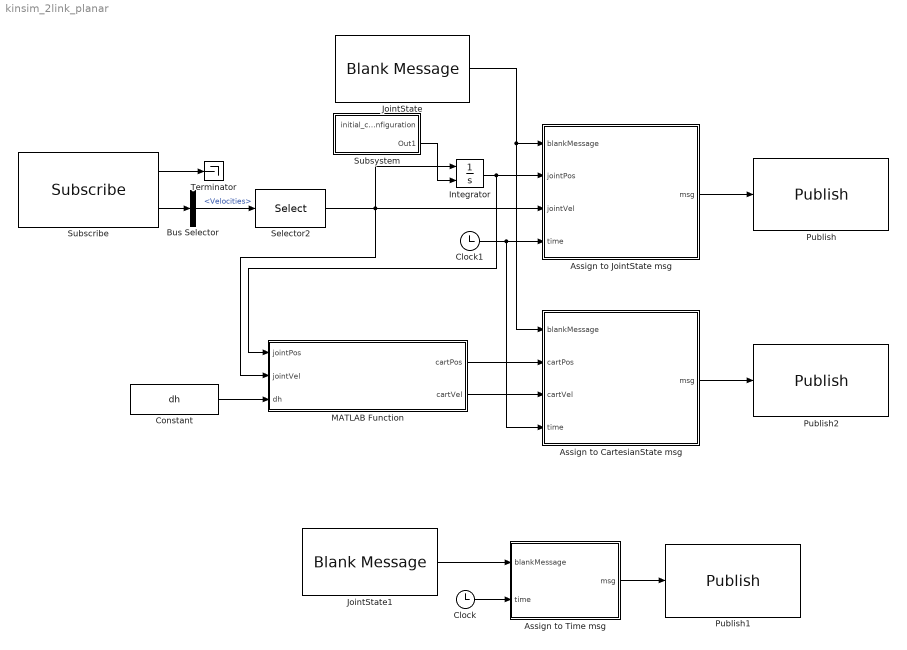
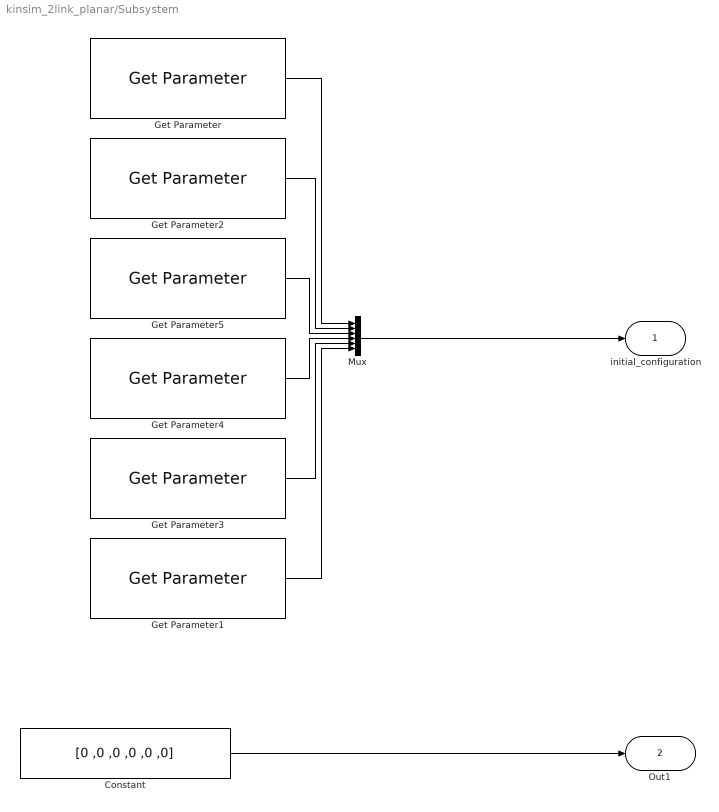
== matlab function kinsim_2link_planar/Assign to Time msg ==
function msg = assign_Time(blankMessage,time)
%#codegen

% Assign the output message to be the same with input blank message
msg = blankMessage;

% Convert and set time
msg.Clock_.Sec  = fix(time);
msg.Clock_.Nsec = fix((time-fix(time))*1e9);

== matlab function kinsim_2link_planar/Assign to JointState msg ==
function msg = assign_JointState(blankMessage,jointPos,jointVel,time)
%#codegen

% Assign the output message to be the same with input blank message
msg = blankMessage;

% Initialize time stamp
msg.Header.Stamp.Sec  = fix(time);
msg.Header.Stamp.Nsec = fix((time-fix(time))*1e9);

% Set the number of strings in the string array, and joint positions/velocities in the position/velocity array
numJoints = length(jointPos);
msg.Name_SL_Info.CurrentLength = uint32(numJoints);
msg.Position_SL_Info.CurrentLength = uint32(numJoints);
msg.Velocity_SL_Info.CurrentLength = uint32(numJoints);

% Set the individual components in the message arrays
strArrayToAssign = {'joint_1', 'joint_2', 'joint_3', 'joint_4', 'joint_5', 'joint_6'};

for idx=1:numJoints
    str = strArrayToAssign{idx};
    strLength = length(str);
    msg.Name(idx).Data(1:strLength) = uint8(str);
    msg.Name(idx).Data_SL_Info.CurrentLength = uint32(strLength);

    msg.Position(idx) = jointPos(idx);
    msg.Velocity(idx) = jointVel(idx);
end

== matlab function kinsim_2link_planar/MATLAB Function ==
function [cartPos, cartVel] = forward_kinematics_2link(jointPos,jointVel,dh)
%dh è una matrice di denavit hart...
%dh=[0.337,0,-pi/2; 0,0.21,0; 0,0,-pi/2; 0.268,0,pi/2; 0,0,-pi/2; 0.174,0,0];

cartPos = zeros(6,1);
cartVel = zeros(6,1);
A=zeros(4,4,6);
T=zeros(4,4,6);
%jointPos = [0,-pi/2,-pi/2,-pi,-pi,0];


for i=1:6
 A(:,:,i) = [ cos(jointPos(i)),-sin(jointPos(i))*cos(dh(i,3)), sin(jointPos(i))*sin(dh(i,3)),dh(i,2)*cos(jointPos(i));
              sin(jointPos(i)), cos(jointPos(i))*cos(dh(i,3)),-cos(jointPos(i))*sin(dh(i,3)),dh(i,2)*sin(jointPos(i));
              0,                        sin(dh(i,3)),               cos(dh(i,3)),                   dh(i,1);
              0,                            0,                           0,                            1];
end
T(:,:,1) = A(:,:,1);
for i=2:6
    T(:,:,i) = T(:,:,i-1)*A(:,:,i);
end
cartPos(1:3) = T(1:3,4,6);
cartPos(4:6) = rotm2eul(T(1:3,1:3,6));

J = zeros(6,6);
J(1:3,1) = cross([0,0,1],T(1:3,4,6));
J(4:6,1) = [0;0;1];
for i = 2:6
    J(1:3,i) = cross(T(1:3,3,i-1),T(1:3,4,6)-T(1:3,4,i-1));
    J(4:6,i) = T(1:3,3,i-1);
end

R = [0,-sin(cartPos(4)),cos(cartPos(4))*sin(cartPos(5));
     0,cos(cartPos(4)), sin(cartPos(4))*sin(cartPos(5));
     1,     0,              cos(cartPos(5))];
 
cartVel = J*jointVel;
cartVel(4:6)=R*cartVel(4:6);

== matlab function kinsim_2link_planar/Assign to CartesianState msg ==
function msg = assign_CartesianState(blankMessage,cartPos,cartVel,time)
%#codegen

% Assign the output message to be the same with input blank message
msg = blankMessage;

% Initialize time stamp
msg.Header.Stamp.Sec  = fix(time);
msg.Header.Stamp.Nsec = fix((time-fix(time))*1e9);

% Set the number of strings in the string array, and joint positions/velocities in the position/velocity array
numCoordinates = length(cartPos);
msg.Name_SL_Info.CurrentLength = uint32(numCoordinates);
msg.Position_SL_Info.CurrentLength = uint32(numCoordinates);
msg.Velocity_SL_Info.CurrentLength = uint32(numCoordinates);

% Set the individual components in the message arrays
strArrayToAssign = {'joint_1', 'joint_2', 'joint_3', 'joint_4', 'joint_5', 'joint_6'};

for idx=1:numCoordinates
    str = strArrayToAssign{idx};
    strLength = length(str);
    msg.Name(idx).Data(1:strLength) = uint8(str);
    msg.Name(idx).Data_SL_Info.CurrentLength = uint32(strLength);

    msg.Position(idx) = cartPos(idx);
    msg.Velocity(idx) = cartVel(idx);
end

//
// Academic License - for use in teaching, academic research, and meeting
// course requirements at degree granting institutions only.  Not for
// government, commercial, or other organizational use.
//
// File: kinsim_2link_planar.cpp
//
// Code generated for Simulink model 'kinsim_2link_planar'.
//
// Model version                  : 1.122
// Simulink Coder version         : 9.3 (R2020a) 18-Nov-2019
// C/C++ source code generated on : Tue May 12 23:09:10 2020
//
// Target selection: ert.tlc
// Embedded hardware selection: Generic->Unspecified (assume 32-bit Generic)
// Code generation objectives: Unspecified
// Validation result: Not run
//
#include "kinsim_2link_planar.h"
#include "kinsim_2link_planar_private.h"
#include "kinsim_2link_planar_dt.h"

// Block signals (default storage)
B_kinsim_2link_planar_T kinsim_2link_planar_B;

// Continuous states
X_kinsim_2link_planar_T kinsim_2link_planar_X;

// Block states (default storage)
DW_kinsim_2link_planar_T kinsim_2link_planar_DW;

// Real-time model
RT_MODEL_kinsim_2link_planar_T kinsim_2link_planar_M_ =
  RT_MODEL_kinsim_2link_planar_T();
RT_MODEL_kinsim_2link_planar_T *const kinsim_2link_planar_M =
  &kinsim_2link_planar_M_;

// Forward declaration for local functions
static void kinsim_2link_pl_SystemCore_step(boolean_T *varargout_1, real_T
  varargout_2_Positions[128], uint32_T *varargout_2_Positions_SL_Info_C,
  uint32_T *varargout_2_Positions_SL_Info_R, real_T varargout_2_Velocities[128],
  uint32_T *varargout_2_Velocities_SL_Info_, uint32_T
  *varargout_2_Velocities_SL_Inf_0, real_T varargout_2_Accelerations[128],
  uint32_T *varargout_2_Accelerations_SL_In, uint32_T
  *varargout_2_Accelerations_SL__0, real_T varargout_2_Effort[128], uint32_T
  *varargout_2_Effort_SL_Info_Curr, uint32_T *varargout_2_Effort_SL_Info_Rece,
  real_T *varargout_2_TimeFromStart_Sec, real_T *varargout_2_TimeFromStart_Nsec);
static void kinsim_2link_planar_atan2(const real_T y_data[], const int32_T
  y_size[3], const real_T x_data[], const int32_T x_size[3], real_T r_data[],
  int32_T r_size[3]);
static void matlabCodegenHandle_matlabC_li5(ros_slros_internal_block_Subs_T *obj);
static void matlabCodegenHandle_matlab_li5a(ros_slros_internal_block_GetP_T *obj);
static void matlabCodegenHandle_matlabCodeg(ros_slros_internal_block_Publ_T *obj);

//
// This function updates continuous states using the ODE3 fixed-step
// solver algorithm
//
static void rt_ertODEUpdateContinuousStates(RTWSolverInfo *si )
{
  // Solver Matrices
  static const real_T rt_ODE3_A[3] = {
    1.0/2.0, 3.0/4.0, 1.0
  };

  static const real_T rt_ODE3_B[3][3] = {
    { 1.0/2.0, 0.0, 0.0 },

    { 0.0, 3.0/4.0, 0.0 },

    { 2.0/9.0, 1.0/3.0, 4.0/9.0 }
  };

  time_T t = rtsiGetT(si);
  time_T tnew = rtsiGetSolverStopTime(si);
  time_T h = rtsiGetStepSize(si);
  real_T *x = rtsiGetContStates(si);
  ODE3_IntgData *id = static_cast<ODE3_IntgData *>(rtsiGetSolverData(si));
  real_T *y = id->y;
  real_T *f0 = id->f[0];
  real_T *f1 = id->f[1];
  real_T *f2 = id->f[2];
  real_T hB[3];
  int_T i;
  int_T nXc = 6;
  rtsiSetSimTimeStep(si,MINOR_TIME_STEP);

  // Save the state values at time t in y, we'll use x as ynew.
  (void) memcpy(y, x,
                static_cast<uint_T>(nXc)*sizeof(real_T));

  // Assumes that rtsiSetT and ModelOutputs are up-to-date
  // f0 = f(t,y)
  rtsiSetdX(si, f0);
  kinsim_2link_planar_derivatives();

  // f(:,2) = feval(odefile, t + hA(1), y + f*hB(:,1), args(:)(*));
  hB[0] = h * rt_ODE3_B[0][0];
  for (i = 0; i < nXc; i++) {
    x[i] = y[i] + (f0[i]*hB[0]);
  }

  rtsiSetT(si, t + h*rt_ODE3_A[0]);
  rtsiSetdX(si, f1);
  kinsim_2link_planar_step();
  kinsim_2link_planar_derivatives();

  // f(:,3) = feval(odefile, t + hA(2), y + f*hB(:,2), args(:)(*));
  for (i = 0; i <= 1; i++) {
    hB[i] = h * rt_ODE3_B[1][i];
  }

  for (i = 0; i < nXc; i++) {
    x[i] = y[i] + (f0[i]*hB[0] + f1[i]*hB[1]);
  }

  rtsiSetT(si, t + h*rt_ODE3_A[1]);
  rtsiSetdX(si, f2);
  kinsim_2link_planar_step();
  kinsim_2link_planar_derivatives();

  // tnew = t + hA(3);
  // ynew = y + f*hB(:,3);
  for (i = 0; i <= 2; i++) {
    hB[i] = h * rt_ODE3_B[2][i];
  }

  for (i = 0; i < nXc; i++) {
    x[i] = y[i] + (f0[i]*hB[0] + f1[i]*hB[1] + f2[i]*hB[2]);
  }

  rtsiSetT(si, tnew);
  rtsiSetSimTimeStep(si,MAJOR_TIME_STEP);
}

static void kinsim_2link_pl_SystemCore_step(boolean_T *varargout_1, real_T
  varargout_2_Positions[128], uint32_T *varargout_2_Positions_SL_Info_C,
  uint32_T *varargout_2_Positions_SL_Info_R, real_T varargout_2_Velocities[128],
  uint32_T *varargout_2_Velocities_SL_Info_, uint32_T
  *varargout_2_Velocities_SL_Inf_0, real_T varargout_2_Accelerations[128],
  uint32_T *varargout_2_Accelerations_SL_In, uint32_T
  *varargout_2_Accelerations_SL__0, real_T varargout_2_Effort[128], uint32_T
  *varargout_2_Effort_SL_Info_Curr, uint32_T *varargout_2_Effort_SL_Info_Rece,
  real_T *varargout_2_TimeFromStart_Sec, real_T *varargout_2_TimeFromStart_Nsec)
{
  *varargout_1 = Sub_kinsim_2link_planar_16.getLatestMessage
    (&kinsim_2link_planar_B.b_varargout_2);
  *varargout_2_Positions_SL_Info_C =
    kinsim_2link_planar_B.b_varargout_2.Positions_SL_Info.CurrentLength;
  *varargout_2_Positions_SL_Info_R =
    kinsim_2link_planar_B.b_varargout_2.Positions_SL_Info.ReceivedLength;
  *varargout_2_Velocities_SL_Info_ =
    kinsim_2link_planar_B.b_varargout_2.Velocities_SL_Info.CurrentLength;
  *varargout_2_Velocities_SL_Inf_0 =
    kinsim_2link_planar_B.b_varargout_2.Velocities_SL_Info.ReceivedLength;
  *varargout_2_Accelerations_SL_In =
    kinsim_2link_planar_B.b_varargout_2.Accelerations_SL_Info.CurrentLength;
  *varargout_2_Accelerations_SL__0 =
    kinsim_2link_planar_B.b_varargout_2.Accelerations_SL_Info.ReceivedLength;
  memcpy(&varargout_2_Positions[0],
         &kinsim_2link_planar_B.b_varargout_2.Positions[0], sizeof(real_T) << 7U);
  memcpy(&varargout_2_Velocities[0],
         &kinsim_2link_planar_B.b_varargout_2.Velocities[0], sizeof(real_T) <<
         7U);
  memcpy(&varargout_2_Accelerations[0],
         &kinsim_2link_planar_B.b_varargout_2.Accelerations[0], sizeof(real_T) <<
         7U);
  memcpy(&varargout_2_Effort[0], &kinsim_2link_planar_B.b_varargout_2.Effort[0],
         sizeof(real_T) << 7U);
  *varargout_2_Effort_SL_Info_Curr =
    kinsim_2link_planar_B.b_varargout_2.Effort_SL_Info.CurrentLength;
  *varargout_2_Effort_SL_Info_Rece =
    kinsim_2link_planar_B.b_varargout_2.Effort_SL_Info.ReceivedLength;
  *varargout_2_TimeFromStart_Sec =
    kinsim_2link_planar_B.b_varargout_2.TimeFromStart.Sec;
  *varargout_2_TimeFromStart_Nsec =
    kinsim_2link_planar_B.b_varargout_2.TimeFromStart.Nsec;
}

real_T rt_atan2d_snf(real_T u0, real_T u1)
{
  real_T y;
  int32_T u0_0;
  int32_T u1_0;
  if (rtIsNaN(u0) || rtIsNaN(u1)) {
    y = (rtNaN);
  } else if (rtIsInf(u0) && rtIsInf(u1)) {
    if (u0 > 0.0) {
      u0_0 = 1;
    } else {
      u0_0 = -1;
    }

    if (u1 > 0.0) {
      u1_0 = 1;
    } else {
      u1_0 = -1;
    }

    y = atan2(static_cast<real_T>(u0_0), static_cast<real_T>(u1_0));
  } else if (u1 == 0.0) {
    if (u0 > 0.0) {
      y = RT_PI / 2.0;
    } else if (u0 < 0.0) {
      y = -(RT_PI / 2.0);
    } else {
      y = 0.0;
    }
  } else {
    y = atan2(u0, u1);
  }

  return y;
}

// Function for MATLAB Function: '<Root>/MATLAB Function'
static void kinsim_2link_planar_atan2(const real_T y_data[], const int32_T
  y_size[3], const real_T x_data[], const int32_T x_size[3], real_T r_data[],
  int32_T r_size[3])
{
  int32_T loop_ub;
  int32_T tmp;
  int8_T csz_idx_2;
  if (y_size[2] <= x_size[2]) {
    csz_idx_2 = static_cast<int8_T>(y_size[2]);
    tmp = static_cast<int8_T>(y_size[2]);
  } else {
    csz_idx_2 = 0;
    tmp = 0;
  }

  loop_ub = tmp - 1;
  if (0 <= loop_ub) {
    memcpy(&kinsim_2link_planar_B.z1_data, &r_data[0], (loop_ub + 1) * sizeof
           (real_T));
  }

  if (0 <= csz_idx_2 - 1) {
    kinsim_2link_planar_B.z1_data = rt_atan2d_snf(y_data[0], x_data[0]);
  }

  r_size[0] = 1;
  r_size[1] = 1;
  r_size[2] = csz_idx_2;
  loop_ub = tmp - 1;
  if (0 <= loop_ub) {
    memcpy(&r_data[0], &kinsim_2link_planar_B.z1_data, (loop_ub + 1) * sizeof
           (real_T));
  }
}

static void matlabCodegenHandle_matlabC_li5(ros_slros_internal_block_Subs_T *obj)
{
  if (!obj->matlabCodegenIsDeleted) {
    obj->matlabCodegenIsDeleted = true;
  }
}

static void matlabCodegenHandle_matlab_li5a(ros_slros_internal_block_GetP_T *obj)
{
  if (!obj->matlabCodegenIsDeleted) {
    obj->matlabCodegenIsDeleted = true;
  }
}

static void matlabCodegenHandle_matlabCodeg(ros_slros_internal_block_Publ_T *obj)
{
  if (!obj->matlabCodegenIsDeleted) {
    obj->matlabCodegenIsDeleted = true;
  }
}

// Model step function
void kinsim_2link_planar_step(void)
{
  uint32_T b_varargout_2_Positions_SL_Info;
  uint32_T b_varargout_2_Velocities_SL_Inf;
  uint32_T b_varargout_2_Velocities_SL_I_0;
  uint32_T b_varargout_2_Accelerations_SL_;
  uint32_T b_varargout_2_Accelerations_S_0;
  uint32_T b_varargout_2_Effort_SL_Info_Cu;
  uint32_T b_varargout_2_Effort_SL_Info_Re;
  boolean_T b_varargout_1;
  int32_T T_tmp;
  int32_T A_tmp;
  int32_T T_tmp_0;
  int32_T J_tmp;
  static const char_T h[7] = { 'j', 'o', 'i', 'n', 't', '_', '1' };

  static const char_T i[7] = { 'j', 'o', 'i', 'n', 't', '_', '2' };

  static const char_T j[7] = { 'j', 'o', 'i', 'n', 't', '_', '3' };

  static const char_T k[7] = { 'j', 'o', 'i', 'n', 't', '_', '4' };

  static const char_T l[7] = { 'j', 'o', 'i', 'n', 't', '_', '5' };

  static const char_T m[7] = { 'j', 'o', 'i', 'n', 't', '_', '6' };

  if (rtmIsMajorTimeStep(kinsim_2link_planar_M)) {
    // set solver stop time
    rtsiSetSolverStopTime(&kinsim_2link_planar_M->solverInfo,
                          ((kinsim_2link_planar_M->Timing.clockTick0+1)*
      kinsim_2link_planar_M->Timing.stepSize0));
  }                                    // end MajorTimeStep

  // Update absolute time of base rate at minor time step
  if (rtmIsMinorTimeStep(kinsim_2link_planar_M)) {
    kinsim_2link_planar_M->Timing.t[0] = rtsiGetT
      (&kinsim_2link_planar_M->solverInfo);
  }

  // Reset subsysRan breadcrumbs
  srClearBC(kinsim_2link_planar_DW.EnabledSubsystem_SubsysRanBC);
  if (rtmIsMajorTimeStep(kinsim_2link_planar_M)) {
    // Outputs for Atomic SubSystem: '<Root>/Subscribe'
    // MATLABSystem: '<S10>/SourceBlock' incorporates:
    //   Inport: '<S12>/In1'

    kinsim_2link_pl_SystemCore_step(&b_varargout_1,
      kinsim_2link_planar_B.b_varargout_2_Positions,
      &kinsim_2link_planar_B.b_varargout_2_Positions_SL_Info,
      &b_varargout_2_Positions_SL_Info,
      kinsim_2link_planar_B.b_varargout_2_Velocities,
      &b_varargout_2_Velocities_SL_Inf, &b_varargout_2_Velocities_SL_I_0,
      kinsim_2link_planar_B.b_varargout_2_Accelerations,
      &b_varargout_2_Accelerations_SL_, &b_varargout_2_Accelerations_S_0,
      kinsim_2link_planar_B.b_varargout_2_Effort,
      &b_varargout_2_Effort_SL_Info_Cu, &b_varargout_2_Effort_SL_Info_Re,
      &kinsim_2link_planar_B.b_varargout_2_TimeFromStart_Sec,
      &kinsim_2link_planar_B.sy);

    // Outputs for Enabled SubSystem: '<S10>/Enabled Subsystem' incorporates:
    //   EnablePort: '<S12>/Enable'

    if (b_varargout_1) {
      kinsim_2link_planar_B.In1.Positions_SL_Info.CurrentLength =
        kinsim_2link_planar_B.b_varargout_2_Positions_SL_Info;
      kinsim_2link_planar_B.In1.Positions_SL_Info.ReceivedLength =
        b_varargout_2_Positions_SL_Info;
      kinsim_2link_planar_B.In1.Velocities_SL_Info.CurrentLength =
        b_varargout_2_Velocities_SL_Inf;
      kinsim_2link_planar_B.In1.Velocities_SL_Info.ReceivedLength =
        b_varargout_2_Velocities_SL_I_0;
      kinsim_2link_planar_B.In1.Accelerations_SL_Info.CurrentLength =
        b_varargout_2_Accelerations_SL_;
      kinsim_2link_planar_B.In1.Accelerations_SL_Info.ReceivedLength =
        b_varargout_2_Accelerations_S_0;
      memcpy(&kinsim_2link_planar_B.In1.Positions[0],
             &kinsim_2link_planar_B.b_varargout_2_Positions[0], sizeof(real_T) <<
             7U);
      memcpy(&kinsim_2link_planar_B.In1.Velocities[0],
             &kinsim_2link_planar_B.b_varargout_2_Velocities[0], sizeof(real_T) <<
             7U);
      memcpy(&kinsim_2link_planar_B.In1.Accelerations[0],
             &kinsim_2link_planar_B.b_varargout_2_Accelerations[0], sizeof
             (real_T) << 7U);
      memcpy(&kinsim_2link_planar_B.In1.Effort[0],
             &kinsim_2link_planar_B.b_varargout_2_Effort[0], sizeof(real_T) <<
             7U);
      kinsim_2link_planar_B.In1.Effort_SL_Info.CurrentLength =
        b_varargout_2_Effort_SL_Info_Cu;
      kinsim_2link_planar_B.In1.Effort_SL_Info.ReceivedLength =
        b_varargout_2_Effort_SL_Info_Re;
      kinsim_2link_planar_B.In1.TimeFromStart.Sec =
        kinsim_2link_planar_B.b_varargout_2_TimeFromStart_Sec;
      kinsim_2link_planar_B.In1.TimeFromStart.Nsec = kinsim_2link_planar_B.sy;
      srUpdateBC(kinsim_2link_planar_DW.EnabledSubsystem_SubsysRanBC);
    }

    // End of MATLABSystem: '<S10>/SourceBlock'
    // End of Outputs for SubSystem: '<S10>/Enabled Subsystem'
    // End of Outputs for SubSystem: '<Root>/Subscribe'
  }

  // MATLABSystem: '<S11>/Get Parameter'
  ParamGet_kinsim_2link_planar_61.get_parameter
    (&kinsim_2link_planar_B.b_varargout_2_TimeFromStart_Sec);

  // MATLABSystem: '<S11>/Get Parameter2'
  ParamGet_kinsim_2link_planar_85.get_parameter(&kinsim_2link_planar_B.sy);

  // MATLABSystem: '<S11>/Get Parameter5'
  ParamGet_kinsim_2link_planar_88.get_parameter
    (&kinsim_2link_planar_B.eulShaped_idx_1);

  // MATLABSystem: '<S11>/Get Parameter4'
  ParamGet_kinsim_2link_planar_87.get_parameter
    (&kinsim_2link_planar_B.eulShaped_idx_2);

  // MATLABSystem: '<S11>/Get Parameter3'
  ParamGet_kinsim_2link_planar_86.get_parameter(&kinsim_2link_planar_B.value);

  // MATLABSystem: '<S11>/Get Parameter1'
  ParamGet_kinsim_2link_planar_65.get_parameter(&kinsim_2link_planar_B.value_c);

  // Integrator: '<Root>/Integrator' incorporates:
  //   MATLABSystem: '<S11>/Get Parameter'
  //   MATLABSystem: '<S11>/Get Parameter1'
  //   MATLABSystem: '<S11>/Get Parameter2'
  //   MATLABSystem: '<S11>/Get Parameter3'
  //   MATLABSystem: '<S11>/Get Parameter4'
  //   MATLABSystem: '<S11>/Get Parameter5'

  if (kinsim_2link_planar_DW.Integrator_IWORK != 0) {
    kinsim_2link_planar_X.Integrator_CSTATE[0] =
      kinsim_2link_planar_B.b_varargout_2_TimeFromStart_Sec;
    kinsim_2link_planar_X.Integrator_CSTATE[1] = kinsim_2link_planar_B.sy;
    kinsim_2link_planar_X.Integrator_CSTATE[2] =
      kinsim_2link_planar_B.eulShaped_idx_1;
    kinsim_2link_planar_X.Integrator_CSTATE[3] =
      kinsim_2link_planar_B.eulShaped_idx_2;
    kinsim_2link_planar_X.Integrator_CSTATE[4] = kinsim_2link_planar_B.value;
    kinsim_2link_planar_X.Integrator_CSTATE[5] = kinsim_2link_planar_B.value_c;
  }

  // MATLAB Function: '<Root>/MATLAB Function' incorporates:
  //   Constant: '<Root>/Constant'
  //   Integrator: '<Root>/Integrator'

  memset(&kinsim_2link_planar_B.T[0], 0, 96U * sizeof(real_T));
  for (kinsim_2link_planar_B.i = 0; kinsim_2link_planar_B.i < 6;
       kinsim_2link_planar_B.i++) {
    kinsim_2link_planar_B.b_varargout_2_TimeFromStart_Sec = sin
      (kinsim_2link_planar_X.Integrator_CSTATE[kinsim_2link_planar_B.i]);
    kinsim_2link_planar_B.sy = cos
      (kinsim_2link_planar_X.Integrator_CSTATE[kinsim_2link_planar_B.i]);
    kinsim_2link_planar_B.eulShaped_idx_2 =
      kinsim_2link_planar_P.dh[kinsim_2link_planar_B.i + 12];
    kinsim_2link_planar_B.eulShaped_idx_1 = cos
      (kinsim_2link_planar_B.eulShaped_idx_2);
    kinsim_2link_planar_B.eulShaped_idx_2 = sin
      (kinsim_2link_planar_B.eulShaped_idx_2);
    A_tmp = kinsim_2link_planar_B.i << 4;
    kinsim_2link_planar_B.A[A_tmp] = kinsim_2link_planar_B.sy;
    kinsim_2link_planar_B.A[A_tmp + 4] =
      -kinsim_2link_planar_B.b_varargout_2_TimeFromStart_Sec *
      kinsim_2link_planar_B.eulShaped_idx_1;
    kinsim_2link_planar_B.A[A_tmp + 8] =
      kinsim_2link_planar_B.b_varargout_2_TimeFromStart_Sec *
      kinsim_2link_planar_B.eulShaped_idx_2;
    kinsim_2link_planar_B.value =
      kinsim_2link_planar_P.dh[kinsim_2link_planar_B.i + 6];
    kinsim_2link_planar_B.A[A_tmp + 12] = kinsim_2link_planar_B.value *
      kinsim_2link_planar_B.sy;
    kinsim_2link_planar_B.A[A_tmp + 1] =
      kinsim_2link_planar_B.b_varargout_2_TimeFromStart_Sec;
    kinsim_2link_planar_B.A[A_tmp + 5] = kinsim_2link_planar_B.sy *
      kinsim_2link_planar_B.eulShaped_idx_1;
    kinsim_2link_planar_B.A[A_tmp + 9] = -kinsim_2link_planar_B.sy *
      kinsim_2link_planar_B.eulShaped_idx_2;
    kinsim_2link_planar_B.A[A_tmp + 13] = kinsim_2link_planar_B.value *
      kinsim_2link_planar_B.b_varargout_2_TimeFromStart_Sec;
    kinsim_2link_planar_B.A[A_tmp + 2] = 0.0;
    kinsim_2link_planar_B.A[A_tmp + 6] = kinsim_2link_planar_B.eulShaped_idx_2;
    kinsim_2link_planar_B.A[A_tmp + 10] = kinsim_2link_planar_B.eulShaped_idx_1;
    kinsim_2link_planar_B.A[A_tmp + 14] =
      kinsim_2link_planar_P.dh[kinsim_2link_planar_B.i];
    kinsim_2link_planar_B.A[A_tmp + 3] = 0.0;
    kinsim_2link_planar_B.A[A_tmp + 7] = 0.0;
    kinsim_2link_planar_B.A[A_tmp + 11] = 0.0;
    kinsim_2link_planar_B.A[A_tmp + 15] = 1.0;
  }

  for (kinsim_2link_planar_B.i = 0; kinsim_2link_planar_B.i < 4;
       kinsim_2link_planar_B.i++) {
    A_tmp = kinsim_2link_planar_B.i << 2;
    kinsim_2link_planar_B.T[A_tmp] = kinsim_2link_planar_B.A[A_tmp];
    T_tmp = A_tmp + 1;
    kinsim_2link_planar_B.T[T_tmp] = kinsim_2link_planar_B.A[T_tmp];
    T_tmp = A_tmp + 2;
    kinsim_2link_planar_B.T[T_tmp] = kinsim_2link_planar_B.A[T_tmp];
    A_tmp += 3;
    kinsim_2link_planar_B.T[A_tmp] = kinsim_2link_planar_B.A[A_tmp];
  }

  for (kinsim_2link_planar_B.b_i = 0; kinsim_2link_planar_B.b_i < 5;
       kinsim_2link_planar_B.b_i++) {
    for (kinsim_2link_planar_B.i = 0; kinsim_2link_planar_B.i < 4;
         kinsim_2link_planar_B.i++) {
      for (J_tmp = 0; J_tmp < 4; J_tmp++) {
        A_tmp = J_tmp << 2;
        T_tmp = kinsim_2link_planar_B.i + A_tmp;
        kinsim_2link_planar_B.T_m[T_tmp] = 0.0;
        A_tmp += (kinsim_2link_planar_B.b_i + 1) << 4;
        T_tmp_0 = (kinsim_2link_planar_B.b_i << 4) + kinsim_2link_planar_B.i;
        kinsim_2link_planar_B.T_m[T_tmp] += kinsim_2link_planar_B.A[A_tmp] *
          kinsim_2link_planar_B.T[T_tmp_0];
        kinsim_2link_planar_B.T_m[T_tmp] += kinsim_2link_planar_B.A[A_tmp + 1] *
          kinsim_2link_planar_B.T[T_tmp_0 + 4];
        kinsim_2link_planar_B.T_m[T_tmp] += kinsim_2link_planar_B.A[A_tmp + 2] *
          kinsim_2link_planar_B.T[T_tmp_0 + 8];
        kinsim_2link_planar_B.T_m[T_tmp] += kinsim_2link_planar_B.A[A_tmp + 3] *
          kinsim_2link_planar_B.T[T_tmp_0 + 12];
      }
    }

    for (kinsim_2link_planar_B.i = 0; kinsim_2link_planar_B.i < 4;
         kinsim_2link_planar_B.i++) {
      A_tmp = kinsim_2link_planar_B.i << 2;
      T_tmp = A_tmp + ((kinsim_2link_planar_B.b_i + 1) << 4);
      kinsim_2link_planar_B.T[T_tmp] = kinsim_2link_planar_B.T_m[A_tmp];
      kinsim_2link_planar_B.T[T_tmp + 1] = kinsim_2link_planar_B.T_m[A_tmp + 1];
      kinsim_2link_planar_B.T[T_tmp + 2] = kinsim_2link_planar_B.T_m[A_tmp + 2];
      kinsim_2link_planar_B.T[T_tmp + 3] = kinsim_2link_planar_B.T_m[A_tmp + 3];
    }
  }

  kinsim_2link_planar_B.sy = sqrt(kinsim_2link_planar_B.T[80] *
    kinsim_2link_planar_B.T[80] + kinsim_2link_planar_B.T[81] *
    kinsim_2link_planar_B.T[81]);
  kinsim_2link_planar_B.b_varargout_2_TimeFromStart_Sec = rt_atan2d_snf
    (kinsim_2link_planar_B.T[86], kinsim_2link_planar_B.T[90]);
  kinsim_2link_planar_B.cartPos[4] = rt_atan2d_snf(-kinsim_2link_planar_B.T[82],
    kinsim_2link_planar_B.sy);
  kinsim_2link_planar_B.cartPos[3] = rt_atan2d_snf(kinsim_2link_planar_B.T[81],
    kinsim_2link_planar_B.T[80]);
  if (kinsim_2link_planar_B.sy < 2.2204460492503131E-15) {
    kinsim_2link_planar_B.T_size[0] = 1;
    kinsim_2link_planar_B.T_size[1] = 1;
    kinsim_2link_planar_B.T_size[2] = 1;
    kinsim_2link_planar_B.T_size_c[0] = 1;
    kinsim_2link_planar_B.T_size_c[1] = 1;
    kinsim_2link_planar_B.T_size_c[2] = 1;
    kinsim_2link_planar_B.T_size_k[0] = 1;
    kinsim_2link_planar_B.T_size_k[1] = 1;
    kinsim_2link_planar_B.T_size_k[2] = 1;
    kinsim_2link_planar_B.T_data = -kinsim_2link_planar_B.T[89];
    kinsim_2link_planar_B.T_data_b = kinsim_2link_planar_B.T[85];
    kinsim_2link_planar_B.T_data_p = -kinsim_2link_planar_B.T[82];
    kinsim_2link_planar_atan2(&kinsim_2link_planar_B.T_data,
      kinsim_2link_planar_B.T_size, &kinsim_2link_planar_B.T_data_b,
      kinsim_2link_planar_B.T_size_c, &kinsim_2link_planar_B.tmp_data,
      kinsim_2link_planar_B.tmp_size);
    kinsim_2link_planar_B.sy_size[0] = 1;
    kinsim_2link_planar_B.sy_size[1] = 1;
    kinsim_2link_planar_B.sy_size[2] = 1;
    kinsim_2link_planar_B.T_data = kinsim_2link_planar_B.sy;
    kinsim_2link_planar_atan2(&kinsim_2link_planar_B.T_data_p,
      kinsim_2link_planar_B.T_size_k, &kinsim_2link_planar_B.T_data,
      kinsim_2link_planar_B.sy_size, &kinsim_2link_planar_B.T_data_b,
      kinsim_2link_planar_B.T_size);
    A_tmp = kinsim_2link_planar_B.tmp_size[2];
    for (kinsim_2link_planar_B.i = 0; kinsim_2link_planar_B.i < A_tmp;
         kinsim_2link_planar_B.i++) {
      kinsim_2link_planar_B.b_varargout_2_TimeFromStart_Sec =
        kinsim_2link_planar_B.tmp_data;
    }

    A_tmp = kinsim_2link_planar_B.T_size[2];
    for (kinsim_2link_planar_B.i = 0; kinsim_2link_planar_B.i < A_tmp;
         kinsim_2link_planar_B.i++) {
      kinsim_2link_planar_B.cartPos[4] = kinsim_2link_planar_B.T_data_b;
    }

    kinsim_2link_planar_B.cartPos[3] = 0.0;
  }

  memset(&kinsim_2link_planar_B.J[0], 0, 36U * sizeof(real_T));
  kinsim_2link_planar_B.J[0] = 0.0 * kinsim_2link_planar_B.T[94] -
    kinsim_2link_planar_B.T[93];
  kinsim_2link_planar_B.J[1] = kinsim_2link_planar_B.T[92] - 0.0 *
    kinsim_2link_planar_B.T[94];
  kinsim_2link_planar_B.J[2] = 0.0 * kinsim_2link_planar_B.T[93] - 0.0 *
    kinsim_2link_planar_B.T[92];
  kinsim_2link_planar_B.J[3] = 0.0;
  kinsim_2link_planar_B.J[4] = 0.0;
  kinsim_2link_planar_B.J[5] = 1.0;
  for (kinsim_2link_planar_B.i = 0; kinsim_2link_planar_B.i < 5;
       kinsim_2link_planar_B.i++) {
    A_tmp = kinsim_2link_planar_B.i + 1;
    T_tmp_0 = kinsim_2link_planar_B.i << 4;
    kinsim_2link_planar_B.sy = kinsim_2link_planar_B.T[92] -
      kinsim_2link_planar_B.T[T_tmp_0 + 12];
    T_tmp = 6 * (kinsim_2link_planar_B.i + 1);
    kinsim_2link_planar_B.b_i = T_tmp_0 + 8;
    kinsim_2link_planar_B.J[T_tmp + 3] =
      kinsim_2link_planar_B.T[kinsim_2link_planar_B.b_i];
    kinsim_2link_planar_B.eulShaped_idx_1 = kinsim_2link_planar_B.T[93] -
      kinsim_2link_planar_B.T[T_tmp_0 + 13];
    J_tmp = T_tmp_0 + 9;
    kinsim_2link_planar_B.J[T_tmp + 4] = kinsim_2link_planar_B.T[J_tmp];
    kinsim_2link_planar_B.eulShaped_idx_2 = kinsim_2link_planar_B.T[94] -
      kinsim_2link_planar_B.T[T_tmp_0 + 14];
    T_tmp_0 += 10;
    kinsim_2link_planar_B.J[T_tmp + 5] = kinsim_2link_planar_B.T[T_tmp_0];
    kinsim_2link_planar_B.J[6 * A_tmp] = kinsim_2link_planar_B.T[J_tmp] *
      kinsim_2link_planar_B.eulShaped_idx_2 - kinsim_2link_planar_B.T[T_tmp_0] *
      kinsim_2link_planar_B.eulShaped_idx_1;
    kinsim_2link_planar_B.J[6 * A_tmp + 1] = kinsim_2link_planar_B.T[T_tmp_0] *
      kinsim_2link_planar_B.sy -
      kinsim_2link_planar_B.T[kinsim_2link_planar_B.b_i] *
      kinsim_2link_planar_B.eulShaped_idx_2;
    kinsim_2link_planar_B.J[6 * A_tmp + 2] =
      kinsim_2link_planar_B.T[kinsim_2link_planar_B.b_i] *
      kinsim_2link_planar_B.eulShaped_idx_1 - kinsim_2link_planar_B.T[J_tmp] *
      kinsim_2link_planar_B.sy;
  }

  for (kinsim_2link_planar_B.i = 0; kinsim_2link_planar_B.i < 6;
       kinsim_2link_planar_B.i++) {
    kinsim_2link_planar_B.cartVel[kinsim_2link_planar_B.i] = 0.0;
    for (J_tmp = 0; J_tmp < 6; J_tmp++) {
      kinsim_2link_planar_B.cartVel[kinsim_2link_planar_B.i] +=
        kinsim_2link_planar_B.J[6 * J_tmp + kinsim_2link_planar_B.i] *
        kinsim_2link_planar_B.In1.Velocities[J_tmp];
    }
  }

  kinsim_2link_planar_B.sy = sin(kinsim_2link_planar_B.cartPos[3]);
  kinsim_2link_planar_B.eulShaped_idx_1 = sin(kinsim_2link_planar_B.cartPos[4]);
  kinsim_2link_planar_B.eulShaped_idx_2 = cos(kinsim_2link_planar_B.cartPos[3]);
  kinsim_2link_planar_B.dv[0] = 0.0;
  kinsim_2link_planar_B.dv[3] = -kinsim_2link_planar_B.sy;
  kinsim_2link_planar_B.dv[6] = kinsim_2link_planar_B.eulShaped_idx_2 *
    kinsim_2link_planar_B.eulShaped_idx_1;
  kinsim_2link_planar_B.dv[1] = 0.0;
  kinsim_2link_planar_B.dv[4] = kinsim_2link_planar_B.eulShaped_idx_2;
  kinsim_2link_planar_B.dv[7] = kinsim_2link_planar_B.sy *
    kinsim_2link_planar_B.eulShaped_idx_1;
  kinsim_2link_planar_B.dv[2] = 1.0;
  kinsim_2link_planar_B.dv[5] = 0.0;
  kinsim_2link_planar_B.dv[8] = cos(kinsim_2link_planar_B.cartPos[4]);
  for (kinsim_2link_planar_B.i = 0; kinsim_2link_planar_B.i < 3;
       kinsim_2link_planar_B.i++) {
    kinsim_2link_planar_B.dv1[kinsim_2link_planar_B.i] =
      kinsim_2link_planar_B.dv[kinsim_2link_planar_B.i + 6] *
      kinsim_2link_planar_B.cartVel[5] +
      (kinsim_2link_planar_B.dv[kinsim_2link_planar_B.i + 3] *
       kinsim_2link_planar_B.cartVel[4] +
       kinsim_2link_planar_B.dv[kinsim_2link_planar_B.i] *
       kinsim_2link_planar_B.cartVel[3]);
  }

  // Clock: '<Root>/Clock1' incorporates:
  //   Clock: '<Root>/Clock'

  kinsim_2link_planar_B.sy = kinsim_2link_planar_M->Timing.t[0];

  // MATLAB Function: '<Root>/Assign to CartesianState msg' incorporates:
  //   Clock: '<Root>/Clock1'
  //   Constant: '<S4>/Constant'
  //   MATLAB Function: '<Root>/MATLAB Function'

  kinsim_2link_planar_B.msg_d = kinsim_2link_planar_P.Constant_Value;
  if (kinsim_2link_planar_B.sy < 0.0) {
    // MATLAB Function: '<Root>/Assign to JointState msg'
    kinsim_2link_planar_B.eulShaped_idx_1 = ceil(kinsim_2link_planar_B.sy);
  } else {
    // MATLAB Function: '<Root>/Assign to JointState msg'
    kinsim_2link_planar_B.eulShaped_idx_1 = floor(kinsim_2link_planar_B.sy);
  }

  kinsim_2link_planar_B.msg_d.Header.Stamp.Sec =
    kinsim_2link_planar_B.eulShaped_idx_1;
  kinsim_2link_planar_B.eulShaped_idx_2 = (kinsim_2link_planar_B.sy -
    kinsim_2link_planar_B.eulShaped_idx_1) * 1.0E+9;
  if (kinsim_2link_planar_B.eulShaped_idx_2 < 0.0) {
    // MATLAB Function: '<Root>/Assign to JointState msg'
    kinsim_2link_planar_B.eulShaped_idx_2 = ceil
      (kinsim_2link_planar_B.eulShaped_idx_2);
  } else {
    // MATLAB Function: '<Root>/Assign to JointState msg'
    kinsim_2link_planar_B.eulShaped_idx_2 = floor
      (kinsim_2link_planar_B.eulShaped_idx_2);
  }

  kinsim_2link_planar_B.msg_d.Header.Stamp.Nsec =
    kinsim_2link_planar_B.eulShaped_idx_2;
  kinsim_2link_planar_B.msg_d.Name_SL_Info.CurrentLength = 6U;
  kinsim_2link_planar_B.msg_d.Position_SL_Info.CurrentLength = 6U;
  kinsim_2link_planar_B.msg_d.Velocity_SL_Info.CurrentLength = 6U;
  kinsim_2link_planar_B.msg_d.Name[0].Data_SL_Info.CurrentLength = 7U;
  kinsim_2link_planar_B.msg_d.Position[0] = kinsim_2link_planar_B.T[92];
  kinsim_2link_planar_B.msg_d.Velocity[0] = kinsim_2link_planar_B.cartVel[0];
  kinsim_2link_planar_B.msg_d.Name[1].Data_SL_Info.CurrentLength = 7U;
  kinsim_2link_planar_B.msg_d.Position[1] = kinsim_2link_planar_B.T[93];
  kinsim_2link_planar_B.msg_d.Velocity[1] = kinsim_2link_planar_B.cartVel[1];
  kinsim_2link_planar_B.msg_d.Name[2].Data_SL_Info.CurrentLength = 7U;
  kinsim_2link_planar_B.msg_d.Position[2] = kinsim_2link_planar_B.T[94];
  kinsim_2link_planar_B.msg_d.Velocity[2] = kinsim_2link_planar_B.cartVel[2];
  kinsim_2link_planar_B.msg_d.Name[3].Data_SL_Info.CurrentLength = 7U;
  kinsim_2link_planar_B.msg_d.Position[3] = kinsim_2link_planar_B.cartPos[3];
  kinsim_2link_planar_B.msg_d.Velocity[3] = kinsim_2link_planar_B.dv1[0];
  kinsim_2link_planar_B.msg_d.Name[4].Data_SL_Info.CurrentLength = 7U;
  kinsim_2link_planar_B.msg_d.Position[4] = kinsim_2link_planar_B.cartPos[4];
  kinsim_2link_planar_B.msg_d.Velocity[4] = kinsim_2link_planar_B.dv1[1];
  for (kinsim_2link_planar_B.i = 0; kinsim_2link_planar_B.i < 7;
       kinsim_2link_planar_B.i++) {
    kinsim_2link_planar_B.b.f1[kinsim_2link_planar_B.i] =
      h[kinsim_2link_planar_B.i];
    kinsim_2link_planar_B.c.f1[kinsim_2link_planar_B.i] =
      i[kinsim_2link_planar_B.i];
    kinsim_2link_planar_B.d.f1[kinsim_2link_planar_B.i] =
      j[kinsim_2link_planar_B.i];
    kinsim_2link_planar_B.e.f1[kinsim_2link_planar_B.i] =
      k[kinsim_2link_planar_B.i];
    kinsim_2link_planar_B.f.f1[kinsim_2link_planar_B.i] =
      l[kinsim_2link_planar_B.i];
    kinsim_2link_planar_B.g.f1[kinsim_2link_planar_B.i] =
      m[kinsim_2link_planar_B.i];
    kinsim_2link_planar_B.msg_d.Name[0].Data[kinsim_2link_planar_B.i] =
      static_cast<uint8_T>(kinsim_2link_planar_B.b.f1[kinsim_2link_planar_B.i]);
    kinsim_2link_planar_B.msg_d.Name[1].Data[kinsim_2link_planar_B.i] =
      static_cast<uint8_T>(kinsim_2link_planar_B.c.f1[kinsim_2link_planar_B.i]);
    kinsim_2link_planar_B.msg_d.Name[2].Data[kinsim_2link_planar_B.i] =
      static_cast<uint8_T>(kinsim_2link_planar_B.d.f1[kinsim_2link_planar_B.i]);
    kinsim_2link_planar_B.msg_d.Name[3].Data[kinsim_2link_planar_B.i] =
      static_cast<uint8_T>(kinsim_2link_planar_B.e.f1[kinsim_2link_planar_B.i]);
    kinsim_2link_planar_B.msg_d.Name[4].Data[kinsim_2link_planar_B.i] =
      static_cast<uint8_T>(kinsim_2link_planar_B.f.f1[kinsim_2link_planar_B.i]);
    kinsim_2link_planar_B.msg_d.Name[5].Data[kinsim_2link_planar_B.i] =
      static_cast<uint8_T>(kinsim_2link_planar_B.g.f1[kinsim_2link_planar_B.i]);
  }

  kinsim_2link_planar_B.msg_d.Name[5].Data_SL_Info.CurrentLength = 7U;
  kinsim_2link_planar_B.msg_d.Position[5] =
    kinsim_2link_planar_B.b_varargout_2_TimeFromStart_Sec;
  kinsim_2link_planar_B.msg_d.Velocity[5] = kinsim_2link_planar_B.dv1[2];

  // End of MATLAB Function: '<Root>/Assign to CartesianState msg'

  // Outputs for Atomic SubSystem: '<Root>/Publish2'
  // MATLABSystem: '<S9>/SinkBlock'
  Pub_kinsim_2link_planar_79.publish(&kinsim_2link_planar_B.msg_d);

  // End of Outputs for SubSystem: '<Root>/Publish2'

  // MATLAB Function: '<Root>/Assign to JointState msg' incorporates:
  //   Constant: '<S4>/Constant'
  //   Integrator: '<Root>/Integrator'

  kinsim_2link_planar_B.msg_d = kinsim_2link_planar_P.Constant_Value;
  kinsim_2link_planar_B.msg_d.Header.Stamp.Sec =
    kinsim_2link_planar_B.eulShaped_idx_1;
  kinsim_2link_planar_B.msg_d.Header.Stamp.Nsec =
    kinsim_2link_planar_B.eulShaped_idx_2;
  kinsim_2link_planar_B.msg_d.Name_SL_Info.CurrentLength = 6U;
  kinsim_2link_planar_B.msg_d.Position_SL_Info.CurrentLength = 6U;
  kinsim_2link_planar_B.msg_d.Velocity_SL_Info.CurrentLength = 6U;
  kinsim_2link_planar_B.msg_d.Name[0].Data_SL_Info.CurrentLength = 7U;
  kinsim_2link_planar_B.msg_d.Position[0] =
    kinsim_2link_planar_X.Integrator_CSTATE[0];
  kinsim_2link_planar_B.msg_d.Velocity[0] =
    kinsim_2link_planar_B.In1.Velocities[0];
  kinsim_2link_planar_B.msg_d.Name[1].Data_SL_Info.CurrentLength = 7U;
  kinsim_2link_planar_B.msg_d.Position[1] =
    kinsim_2link_planar_X.Integrator_CSTATE[1];
  kinsim_2link_planar_B.msg_d.Velocity[1] =
    kinsim_2link_planar_B.In1.Velocities[1];
  kinsim_2link_planar_B.msg_d.Name[2].Data_SL_Info.CurrentLength = 7U;
  kinsim_2link_planar_B.msg_d.Position[2] =
    kinsim_2link_planar_X.Integrator_CSTATE[2];
  kinsim_2link_planar_B.msg_d.Velocity[2] =
    kinsim_2link_planar_B.In1.Velocities[2];
  kinsim_2link_planar_B.msg_d.Name[3].Data_SL_Info.CurrentLength = 7U;
  kinsim_2link_planar_B.msg_d.Position[3] =
    kinsim_2link_planar_X.Integrator_CSTATE[3];
  kinsim_2link_planar_B.msg_d.Velocity[3] =
    kinsim_2link_planar_B.In1.Velocities[3];
  kinsim_2link_planar_B.msg_d.Name[4].Data_SL_Info.CurrentLength = 7U;
  kinsim_2link_planar_B.msg_d.Position[4] =
    kinsim_2link_planar_X.Integrator_CSTATE[4];
  kinsim_2link_planar_B.msg_d.Velocity[4] =
    kinsim_2link_planar_B.In1.Velocities[4];
  for (kinsim_2link_planar_B.i = 0; kinsim_2link_planar_B.i < 7;
       kinsim_2link_planar_B.i++) {
    kinsim_2link_planar_B.b.f1[kinsim_2link_planar_B.i] =
      h[kinsim_2link_planar_B.i];
    kinsim_2link_planar_B.c.f1[kinsim_2link_planar_B.i] =
      i[kinsim_2link_planar_B.i];
    kinsim_2link_planar_B.d.f1[kinsim_2link_planar_B.i] =
      j[kinsim_2link_planar_B.i];
    kinsim_2link_planar_B.e.f1[kinsim_2link_planar_B.i] =
      k[kinsim_2link_planar_B.i];
    kinsim_2link_planar_B.f.f1[kinsim_2link_planar_B.i] =
      l[kinsim_2link_planar_B.i];
    kinsim_2link_planar_B.g.f1[kinsim_2link_planar_B.i] =
      m[kinsim_2link_planar_B.i];
    kinsim_2link_planar_B.msg_d.Name[0].Data[kinsim_2link_planar_B.i] =
      static_cast<uint8_T>(kinsim_2link_planar_B.b.f1[kinsim_2link_planar_B.i]);
    kinsim_2link_planar_B.msg_d.Name[1].Data[kinsim_2link_planar_B.i] =
      static_cast<uint8_T>(kinsim_2link_planar_B.c.f1[kinsim_2link_planar_B.i]);
    kinsim_2link_planar_B.msg_d.Name[2].Data[kinsim_2link_planar_B.i] =
      static_cast<uint8_T>(kinsim_2link_planar_B.d.f1[kinsim_2link_planar_B.i]);
    kinsim_2link_planar_B.msg_d.Name[3].Data[kinsim_2link_planar_B.i] =
      static_cast<uint8_T>(kinsim_2link_planar_B.e.f1[kinsim_2link_planar_B.i]);
    kinsim_2link_planar_B.msg_d.Name[4].Data[kinsim_2link_planar_B.i] =
      static_cast<uint8_T>(kinsim_2link_planar_B.f.f1[kinsim_2link_planar_B.i]);
    kinsim_2link_planar_B.msg_d.Name[5].Data[kinsim_2link_planar_B.i] =
      static_cast<uint8_T>(kinsim_2link_planar_B.g.f1[kinsim_2link_planar_B.i]);
  }

  kinsim_2link_planar_B.msg_d.Name[5].Data_SL_Info.CurrentLength = 7U;
  kinsim_2link_planar_B.msg_d.Position[5] =
    kinsim_2link_planar_X.Integrator_CSTATE[5];
  kinsim_2link_planar_B.msg_d.Velocity[5] =
    kinsim_2link_planar_B.In1.Velocities[5];

  // Outputs for Atomic SubSystem: '<Root>/Publish'
  // MATLABSystem: '<S7>/SinkBlock'
  Pub_kinsim_2link_planar_22.publish(&kinsim_2link_planar_B.msg_d);

  // End of Outputs for SubSystem: '<Root>/Publish'

  // MATLAB Function: '<Root>/Assign to Time msg'
  if (kinsim_2link_planar_B.sy < 0.0) {
    kinsim_2link_planar_B.eulShaped_idx_1 = ceil(kinsim_2link_planar_B.sy);
  } else {
    kinsim_2link_planar_B.eulShaped_idx_1 = floor(kinsim_2link_planar_B.sy);
  }

  kinsim_2link_planar_B.msg_l.Clock_.Sec = kinsim_2link_planar_B.eulShaped_idx_1;
  kinsim_2link_planar_B.eulShaped_idx_2 = (kinsim_2link_planar_B.sy -
    kinsim_2link_planar_B.eulShaped_idx_1) * 1.0E+9;
  if (kinsim_2link_planar_B.eulShaped_idx_2 < 0.0) {
    kinsim_2link_planar_B.msg_l.Clock_.Nsec = ceil
      (kinsim_2link_planar_B.eulShaped_idx_2);
  } else {
    kinsim_2link_planar_B.msg_l.Clock_.Nsec = floor
      (kinsim_2link_planar_B.eulShaped_idx_2);
  }

  // End of MATLAB Function: '<Root>/Assign to Time msg'

  // Outputs for Atomic SubSystem: '<Root>/Publish1'
  // MATLABSystem: '<S8>/SinkBlock'
  Pub_kinsim_2link_planar_50.publish(&kinsim_2link_planar_B.msg_l);

  // End of Outputs for SubSystem: '<Root>/Publish1'
  if (rtmIsMajorTimeStep(kinsim_2link_planar_M)) {
    // Update for Integrator: '<Root>/Integrator'
    kinsim_2link_planar_DW.Integrator_IWORK = 0;

    // External mode
    rtExtModeUploadCheckTrigger(2);

    {                                  // Sample time: [0.0s, 0.0s]
      rtExtModeUpload(0, (real_T)kinsim_2link_planar_M->Timing.t[0]);
    }

    if (rtmIsMajorTimeStep(kinsim_2link_planar_M)) {// Sample time: [0.05s, 0.0s] 
      rtExtModeUpload(1, (real_T)((kinsim_2link_planar_M->Timing.clockTick1) *
        0.05));
    }
  }                                    // end MajorTimeStep

  if (rtmIsMajorTimeStep(kinsim_2link_planar_M)) {
    // signal main to stop simulation
    {                                  // Sample time: [0.0s, 0.0s]
      if ((rtmGetTFinal(kinsim_2link_planar_M)!=-1) &&
          !((rtmGetTFinal(kinsim_2link_planar_M)-
             ((kinsim_2link_planar_M->Timing.clockTick1) * 0.05)) >
            ((kinsim_2link_planar_M->Timing.clockTick1) * 0.05) * (DBL_EPSILON)))
      {
        rtmSetErrorStatus(kinsim_2link_planar_M, "Simulation finished");
      }

      if (rtmGetStopRequested(kinsim_2link_planar_M)) {
        rtmSetErrorStatus(kinsim_2link_planar_M, "Simulation finished");
      }
    }

    rt_ertODEUpdateContinuousStates(&kinsim_2link_planar_M->solverInfo);

    // Update absolute time for base rate
    // The "clockTick0" counts the number of times the code of this task has
    //  been executed. The absolute time is the multiplication of "clockTick0"
    //  and "Timing.stepSize0". Size of "clockTick0" ensures timer will not
    //  overflow during the application lifespan selected.

    ++kinsim_2link_planar_M->Timing.clockTick0;
    kinsim_2link_planar_M->Timing.t[0] = rtsiGetSolverStopTime
      (&kinsim_2link_planar_M->solverInfo);

    {
      // Update absolute timer for sample time: [0.05s, 0.0s]
      // The "clockTick1" counts the number of times the code of this task has
      //  been executed. The resolution of this integer timer is 0.05, which is the step size
      //  of the task. Size of "clockTick1" ensures timer will not overflow during the
      //  application lifespan selected.

      kinsim_2link_planar_M->Timing.clockTick1++;
    }
  }                                    // end MajorTimeStep
}
